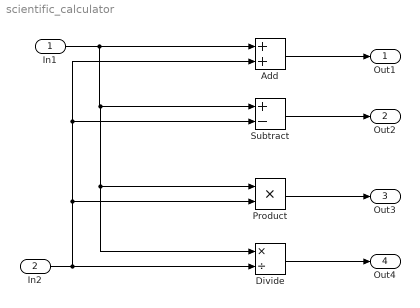
/*
 * File: scientific_calculator.c
 *
 * Code generated for Simulink model 'scientific_calculator'.
 *
 * Model version                  : 1.2
 * Simulink Coder version         : 8.11 (R2016b) 25-Aug-2016
 * C/C++ source code generated on : Sun Dec 25 10:24:47 2022
 *
 * Target selection: ert.tlc
 * Embedded hardware selection: Intel->x86-64 (Windows64)
 * Code generation objectives:
 *    1. Execution efficiency
 *    2. RAM efficiency
 *    3. ROM efficiency
 * Validation result: Not run
 */

#include "scientific_calculator.h"
#include "scientific_calculator_private.h"

/* External inputs (root inport signals with auto storage) */
ExtU_scientific_calculator_T scientific_calculator_U;

/* External outputs (root outports fed by signals with auto storage) */
ExtY_scientific_calculator_T scientific_calculator_Y;

/* Real-time model */
RT_MODEL_scientific_calculato_T scientific_calculator_M_;
RT_MODEL_scientific_calculato_T *const scientific_calculator_M =
  &scientific_calculator_M_;

/* Model step function */
void scientific_calculator_step(void)
{
  /* Outport: '<Root>/Out1' incorporates:
   *  Inport: '<Root>/In1'
   *  Inport: '<Root>/In2'
   *  Sum: '<Root>/Add'
   */
  scientific_calculator_Y.Out1 = scientific_calculator_U.In1 +
    scientific_calculator_U.In2;

  /* Outport: '<Root>/Out2' incorporates:
   *  Inport: '<Root>/In1'
   *  Inport: '<Root>/In2'
   *  Sum: '<Root>/Subtract'
   */
  scientific_calculator_Y.Out2 = scientific_calculator_U.In1 -
    scientific_calculator_U.In2;

  /* Outport: '<Root>/Out3' incorporates:
   *  Inport: '<Root>/In1'
   *  Inport: '<Root>/In2'
   *  Product: '<Root>/Product'
   */
  scientific_calculator_Y.Out3 = scientific_calculator_U.In1 *
    scientific_calculator_U.In2;

  /* Outport: '<Root>/Out4' incorporates:
   *  Inport: '<Root>/In1'
   *  Inport: '<Root>/In2'
   *  Product: '<Root>/Divide'
   */
  scientific_calculator_Y.Out4 = scientific_calculator_U.In1 /
    scientific_calculator_U.In2;
}
